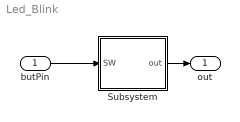
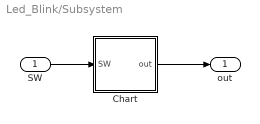
== stateflow chart Led_Blink/Subsystem/Chart ==
  state OFF
    en: out=0;
    printf("LED_OFF\r\n");
  state ON
    en: out =1;
    printf("LED_ON\r\n");
  (default) -> ON
  OFF -> ON : [SW==1] /*LED_on*/
  ON -> OFF : [SW==0] /*LED_off*/
  data: SW input; out output double

/*
 * Led_Blink.c
 *
 * Code generation for model "Led_Blink".
 *
 * Model version              : 1.14
 * Simulink Coder version : 8.4 (R2013a) 13-Feb-2013
 * C source code generated on : Wed Jun 12 12:51:11 2019
 *
 * Target selection: grt.tlc
 * Note: GRT includes extra infrastructure and instrumentation for prototyping
 * Embedded hardware selection: ARM Compatible->ARM Cortex
 * Code generation objective: Debugging
 * Validation result: Not run
 */
#include "Led_Blink.h"
#include "Led_Blink_private.h"

/* Named constants for Chart: '<S1>/Chart' */
#define Led_Blink_IN_NO_ACTIVE_CHILD   ((uint8_T)0U)
#define Led_Blink_IN_OFF               ((uint8_T)1U)
#define Led_Blink_IN_ON                ((uint8_T)2U)

/* Block states (auto storage) */
DW_Led_Blink_T Led_Blink_DW;

/* External inputs (root inport signals with auto storage) */
ExtU_Led_Blink_T Led_Blink_U;

/* External outputs (root outports fed by signals with auto storage) */
ExtY_Led_Blink_T Led_Blink_Y;

/* Real-time model */
RT_MODEL_Led_Blink_T Led_Blink_M_;
RT_MODEL_Led_Blink_T *const Led_Blink_M = &Led_Blink_M_;

/* Model step function */
void Led_Blink_step(void)
{
  /* Outputs for Atomic SubSystem: '<Root>/Subsystem' */
  /* Chart: '<S1>/Chart' incorporates:
   *  Inport: '<Root>/butPin'
   */
  /* Gateway: Subsystem/Chart */
  /* During: Subsystem/Chart */
  if (Led_Blink_DW.is_active_c1_Led_Blink == 0U) {
    /* Entry: Subsystem/Chart */
    Led_Blink_DW.is_active_c1_Led_Blink = 1U;

    /* Entry Internal: Subsystem/Chart */
    /* Transition: '<S2>:3' */
    Led_Blink_DW.is_c1_Led_Blink = Led_Blink_IN_ON;

    /* Outport: '<Root>/out' */
    /* Entry 'ON': '<S2>:1' */
    Led_Blink_Y.out = 1.0;
    printf("LED_ON\\r\\n");
  } else if (Led_Blink_DW.is_c1_Led_Blink == Led_Blink_IN_OFF) {
    /* During 'OFF': '<S2>:2' */
    //if (Led_Blink_U.butPin == 1.0)
      if(Led_Blink_U.butPin)
    {
      /* Transition: '<S2>:4' */
      /* LED_on */
      Led_Blink_DW.is_c1_Led_Blink = Led_Blink_IN_ON;

      /* Outport: '<Root>/out' */
      /* Entry 'ON': '<S2>:1' */
      digitalWrite(Led_Blink_Y.out,1);
     // Led_Blink_Y.out = 1.0;
      printf("LED_ON\\r\\n");
    }
  } else {
    /* During 'ON': '<S2>:1' */
    //if (Led_Blink_U.butPin == 0.0) 
      if(!(Led_Blink_U.butPin))
      {
      /* Transition: '<S2>:5' */
      /* LED_off */
      Led_Blink_DW.is_c1_Led_Blink = Led_Blink_IN_OFF;

      /* Outport: '<Root>/out' */
      /* Entry 'OFF': '<S2>:2' */
      digitalWrite(Led_Blink_Y.out,0);
      //Led_Blink_Y.out = 0.0;
      printf("LED_OFF\\r\\n");
    }
  }

  /* End of Chart: '<S1>/Chart' */
  /* End of Outputs for SubSystem: '<Root>/Subsystem' */

  /* Matfile logging */
  rt_UpdateTXYLogVars(Led_Blink_M->rtwLogInfo, (&Led_Blink_M->Timing.taskTime0));

  /* signal main to stop simulation */
  {                                    /* Sample time: [0.01s, 0.0s] */
    if ((rtmGetTFinal(Led_Blink_M)!=-1) &&
        !((rtmGetTFinal(Led_Blink_M)-Led_Blink_M->Timing.taskTime0) >
          Led_Blink_M->Timing.taskTime0 * (DBL_EPSILON))) {
      rtmSetErrorStatus(Led_Blink_M, "Simulation finished");
    }
  }

  /* Update absolute time for base rate */
  /* The "clockTick0" counts the number of times the code of this task has
   * been executed. The absolute time is the multiplication of "clockTick0"
   * and "Timing.stepSize0". Size of "clockTick0" ensures timer will not
   * overflow during the application lifespan selected.
   * Timer of this task consists of two 32 bit unsigned integers.
   * The two integers represent the low bits Timing.clockTick0 and the high bits
   * Timing.clockTickH0. When the low bit overflows to 0, the high bits increment.
   */
  if (!(++Led_Blink_M->Timing.clockTick0)) {
    ++Led_Blink_M->Timing.clockTickH0;
  }

  Led_Blink_M->Timing.taskTime0 = Led_Blink_M->Timing.clockTick0 *
    Led_Blink_M->Timing.stepSize0 + Led_Blink_M->Timing.clockTickH0 *
    Led_Blink_M->Timing.stepSize0 * 4294967296.0;
}
